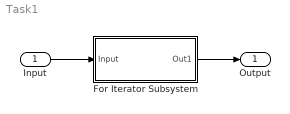
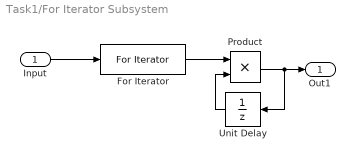
/*
 * File: Task1.c
 *
 * Code generated for Simulink model 'Task1'.
 *
 * Model version                  : 1.6
 * Simulink Coder version         : 9.5 (R2021a) 14-Nov-2020
 * C/C++ source code generated on : Mon Jan 29 14:26:37 2024
 *
 * Target selection: ert.tlc
 * Embedded hardware selection: Intel->x86-64 (Windows64)
 * Code generation objectives: Unspecified
 * Validation result: Not run
 */

#include "Task1.h"
#include "Task1_private.h"

/* Block states (default storage) */
DW_Task1_T Task1_DW;

/* External inputs (root inport signals with default storage) */
ExtU_Task1_T Task1_U;

/* External outputs (root outports fed by signals with default storage) */
ExtY_Task1_T Task1_Y;

/* Real-time model */
static RT_MODEL_Task1_T Task1_M_;
RT_MODEL_Task1_T *const Task1_M = &Task1_M_;

/* Model step function */
void Task1_step(void)
{
  int32_T s1_iter;
  int32_T tmp;

  /* Outputs for Iterator SubSystem: '<Root>/For Iterator Subsystem' incorporates:
   *  ForIterator: '<S1>/For Iterator'
   */
  /* Inport: '<Root>/Input' */
  tmp = Task1_U.Input;
  if (Task1_U.Input > 2147483646) {
    tmp = 2147483646;
  } else if (Task1_U.Input < 0) {
    tmp = 0;
  }

  /* End of Inport: '<Root>/Input' */
  for (s1_iter = 1; s1_iter <= tmp; s1_iter++) {
    /* Outport: '<Root>/Output' incorporates:
     *  Product: '<S1>/Product'
     *  UnitDelay: '<S1>/Unit Delay'
     */
    Task1_Y.Output = s1_iter * Task1_DW.UnitDelay_DSTATE;

    /* Update for UnitDelay: '<S1>/Unit Delay' incorporates:
     *  Outport: '<Root>/Output'
     */
    Task1_DW.UnitDelay_DSTATE = Task1_Y.Output;
  }

  /* End of Outputs for SubSystem: '<Root>/For Iterator Subsystem' */
}
